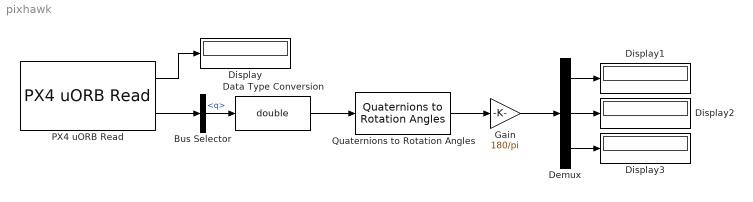
//
// File: pixhawk.cpp
//
// Code generated for Simulink model 'pixhawk'.
//
// Model version                  : 1.8
// Simulink Coder version         : 9.6 (R2021b) 14-May-2021
// C/C++ source code generated on : Wed Jan  3 23:17:09 2024
//
// Target selection: ert.tlc
// Embedded hardware selection: ARM Compatible->ARM Cortex
// Code generation objectives: Unspecified
// Validation result: Not run
//
#include "pixhawk.h"
#include "pixhawk_private.h"
#include "pixhawk_dt.h"

// Block signals (default storage)
B_pixhawk_T pixhawk_B;

// Block states (default storage)
DW_pixhawk_T pixhawk_DW;

// Real-time model
RT_MODEL_pixhawk_T pixhawk_M_ = RT_MODEL_pixhawk_T();
RT_MODEL_pixhawk_T *const pixhawk_M = &pixhawk_M_;
real_T rt_atan2d_snf(real_T u0, real_T u1)
{
  real_T y;
  if (rtIsNaN(u0) || rtIsNaN(u1)) {
    y = (rtNaN);
  } else if (rtIsInf(u0) && rtIsInf(u1)) {
    int32_T u0_0;
    int32_T u1_0;
    if (u0 > 0.0) {
      u0_0 = 1;
    } else {
      u0_0 = -1;
    }

    if (u1 > 0.0) {
      u1_0 = 1;
    } else {
      u1_0 = -1;
    }

    y = atan2(static_cast<real_T>(u0_0), static_cast<real_T>(u1_0));
  } else if (u1 == 0.0) {
    if (u0 > 0.0) {
      y = RT_PI / 2.0;
    } else if (u0 < 0.0) {
      y = -(RT_PI / 2.0);
    } else {
      y = 0.0;
    }
  } else {
    y = atan2(u0, u1);
  }

  return y;
}

// Model step function
void pixhawk_step(void)
{
  real_T Gain_tmp;
  real_T Gain_tmp_0;
  real_T Gain_tmp_1;
  real_T Gain_tmp_2;
  real_T rtb_fcn3;
  real_T rtb_fcn5;
  boolean_T b_varargout_1;

  // Reset subsysRan breadcrumbs
  srClearBC(pixhawk_DW.EnabledSubsystem_SubsysRanBC);

  // Reset subsysRan breadcrumbs
  srClearBC(pixhawk_DW.IfActionSubsystem_SubsysRanBC);

  // Reset subsysRan breadcrumbs
  srClearBC(pixhawk_DW.IfActionSubsystem1_SubsysRanBC);

  // Reset subsysRan breadcrumbs
  srClearBC(pixhawk_DW.IfActionSubsystem2_SubsysRanBC);

  // MATLABSystem: '<S1>/SourceBlock' incorporates:
  //   Inport: '<S3>/In1'

  b_varargout_1 = uORB_read_step(pixhawk_DW.obj.orbMetadataObj,
    &pixhawk_DW.obj.eventStructObj, &pixhawk_B.b_varargout_2, false, 1.0);

  // Outputs for Enabled SubSystem: '<S1>/Enabled Subsystem' incorporates:
  //   EnablePort: '<S3>/Enable'

  if (b_varargout_1) {
    pixhawk_B.In1 = pixhawk_B.b_varargout_2;
    srUpdateBC(pixhawk_DW.EnabledSubsystem_SubsysRanBC);
  }

  // End of Outputs for SubSystem: '<S1>/Enabled Subsystem'

  // Sqrt: '<S10>/sqrt' incorporates:
  //   DataTypeConversion: '<Root>/Data Type Conversion'
  //   Product: '<S11>/Product'
  //   Product: '<S11>/Product1'
  //   Product: '<S11>/Product2'
  //   Product: '<S11>/Product3'
  //   Sum: '<S11>/Sum'

  pixhawk_B.Product3 = sqrt(((static_cast<real_T>(pixhawk_B.In1.q[0]) *
    pixhawk_B.In1.q[0] + static_cast<real_T>(pixhawk_B.In1.q[1]) *
    pixhawk_B.In1.q[1]) + static_cast<real_T>(pixhawk_B.In1.q[2]) *
    pixhawk_B.In1.q[2]) + static_cast<real_T>(pixhawk_B.In1.q[3]) *
    pixhawk_B.In1.q[3]);

  // Product: '<S5>/Product' incorporates:
  //   DataTypeConversion: '<Root>/Data Type Conversion'

  rtb_fcn5 = pixhawk_B.In1.q[0] / pixhawk_B.Product3;

  // Product: '<S5>/Product1' incorporates:
  //   DataTypeConversion: '<Root>/Data Type Conversion'

  pixhawk_B.Product1 = pixhawk_B.In1.q[1] / pixhawk_B.Product3;

  // Product: '<S5>/Product2' incorporates:
  //   DataTypeConversion: '<Root>/Data Type Conversion'

  pixhawk_B.Product2 = pixhawk_B.In1.q[2] / pixhawk_B.Product3;

  // Product: '<S5>/Product3' incorporates:
  //   DataTypeConversion: '<Root>/Data Type Conversion'

  pixhawk_B.Product3 = pixhawk_B.In1.q[3] / pixhawk_B.Product3;

  // Fcn: '<S2>/fcn2' incorporates:
  //   Fcn: '<S2>/fcn5'

  Gain_tmp = rtb_fcn5 * rtb_fcn5;
  Gain_tmp_0 = pixhawk_B.Product1 * pixhawk_B.Product1;
  Gain_tmp_1 = pixhawk_B.Product2 * pixhawk_B.Product2;
  Gain_tmp_2 = pixhawk_B.Product3 * pixhawk_B.Product3;

  // Trigonometry: '<S4>/Trigonometric Function1' incorporates:
  //   Concatenate: '<S4>/Vector Concatenate'
  //   Fcn: '<S2>/fcn1'
  //   Fcn: '<S2>/fcn2'

  pixhawk_B.Gain[0] = rt_atan2d_snf((pixhawk_B.Product1 * pixhawk_B.Product2 +
    rtb_fcn5 * pixhawk_B.Product3) * 2.0, ((Gain_tmp + Gain_tmp_0) - Gain_tmp_1)
    - Gain_tmp_2);

  // Fcn: '<S2>/fcn3'
  rtb_fcn3 = (pixhawk_B.Product1 * pixhawk_B.Product3 - rtb_fcn5 *
              pixhawk_B.Product2) * -2.0;

  // If: '<S6>/If' incorporates:
  //   Constant: '<S7>/Constant'
  //   Constant: '<S8>/Constant'

  if (rtb_fcn3 > 1.0) {
    // Outputs for IfAction SubSystem: '<S6>/If Action Subsystem' incorporates:
    //   ActionPort: '<S7>/Action Port'

    rtb_fcn3 = pixhawk_P.Constant_Value_g;

    // End of Outputs for SubSystem: '<S6>/If Action Subsystem'

    // Update for IfAction SubSystem: '<S6>/If Action Subsystem' incorporates:
    //   ActionPort: '<S7>/Action Port'

    // Update for If: '<S6>/If' incorporates:
    //   Constant: '<S7>/Constant'

    srUpdateBC(pixhawk_DW.IfActionSubsystem_SubsysRanBC);

    // End of Update for SubSystem: '<S6>/If Action Subsystem'
  } else if (rtb_fcn3 < -1.0) {
    // Outputs for IfAction SubSystem: '<S6>/If Action Subsystem1' incorporates:
    //   ActionPort: '<S8>/Action Port'

    rtb_fcn3 = pixhawk_P.Constant_Value_b;

    // End of Outputs for SubSystem: '<S6>/If Action Subsystem1'

    // Update for IfAction SubSystem: '<S6>/If Action Subsystem1' incorporates:
    //   ActionPort: '<S8>/Action Port'

    // Update for If: '<S6>/If' incorporates:
    //   Constant: '<S8>/Constant'

    srUpdateBC(pixhawk_DW.IfActionSubsystem1_SubsysRanBC);

    // End of Update for SubSystem: '<S6>/If Action Subsystem1'
  } else {
    // Update for IfAction SubSystem: '<S6>/If Action Subsystem2' incorporates:
    //   ActionPort: '<S9>/Action Port'

    // Update for If: '<S6>/If'
    srUpdateBC(pixhawk_DW.IfActionSubsystem2_SubsysRanBC);

    // End of Update for SubSystem: '<S6>/If Action Subsystem2'
  }

  // End of If: '<S6>/If'

  // Trigonometry: '<S4>/trigFcn' incorporates:
  //   Concatenate: '<S4>/Vector Concatenate'

  if (rtb_fcn3 > 1.0) {
    rtb_fcn3 = 1.0;
  } else if (rtb_fcn3 < -1.0) {
    rtb_fcn3 = -1.0;
  }

  pixhawk_B.Gain[1] = asin(rtb_fcn3);

  // End of Trigonometry: '<S4>/trigFcn'

  // Trigonometry: '<S4>/Trigonometric Function3' incorporates:
  //   Concatenate: '<S4>/Vector Concatenate'
  //   Fcn: '<S2>/fcn4'
  //   Fcn: '<S2>/fcn5'

  pixhawk_B.Gain[2] = rt_atan2d_snf((pixhawk_B.Product2 * pixhawk_B.Product3 +
    rtb_fcn5 * pixhawk_B.Product1) * 2.0, ((Gain_tmp - Gain_tmp_0) - Gain_tmp_1)
    + Gain_tmp_2);

  // Gain: '<Root>/Gain' incorporates:
  //   Concatenate: '<S4>/Vector Concatenate'

  pixhawk_B.Gain[0] *= pixhawk_P.Gain_Gain;
  pixhawk_B.Gain[1] *= pixhawk_P.Gain_Gain;
  pixhawk_B.Gain[2] *= pixhawk_P.Gain_Gain;

  // Logic: '<S1>/NOT' incorporates:
  //   MATLABSystem: '<S1>/SourceBlock'

  pixhawk_B.NOT = !b_varargout_1;

  // External mode
  rtExtModeUploadCheckTrigger(1);

  {                                    // Sample time: [0.001s, 0.0s]
    rtExtModeUpload(0, (real_T)pixhawk_M->Timing.taskTime0);
  }

  // signal main to stop simulation
  {                                    // Sample time: [0.001s, 0.0s]
    if ((rtmGetTFinal(pixhawk_M)!=-1) &&
        !((rtmGetTFinal(pixhawk_M)-pixhawk_M->Timing.taskTime0) >
          pixhawk_M->Timing.taskTime0 * (DBL_EPSILON))) {
      rtmSetErrorStatus(pixhawk_M, "Simulation finished");
    }

    if (rtmGetStopRequested(pixhawk_M)) {
      rtmSetErrorStatus(pixhawk_M, "Simulation finished");
    }
  }

  // Update absolute time for base rate
  // The "clockTick0" counts the number of times the code of this task has
  //  been executed. The absolute time is the multiplication of "clockTick0"
  //  and "Timing.stepSize0". Size of "clockTick0" ensures timer will not
  //  overflow during the application lifespan selected.

  pixhawk_M->Timing.taskTime0 =
    ((time_T)(++pixhawk_M->Timing.clockTick0)) * pixhawk_M->Timing.stepSize0;
}
